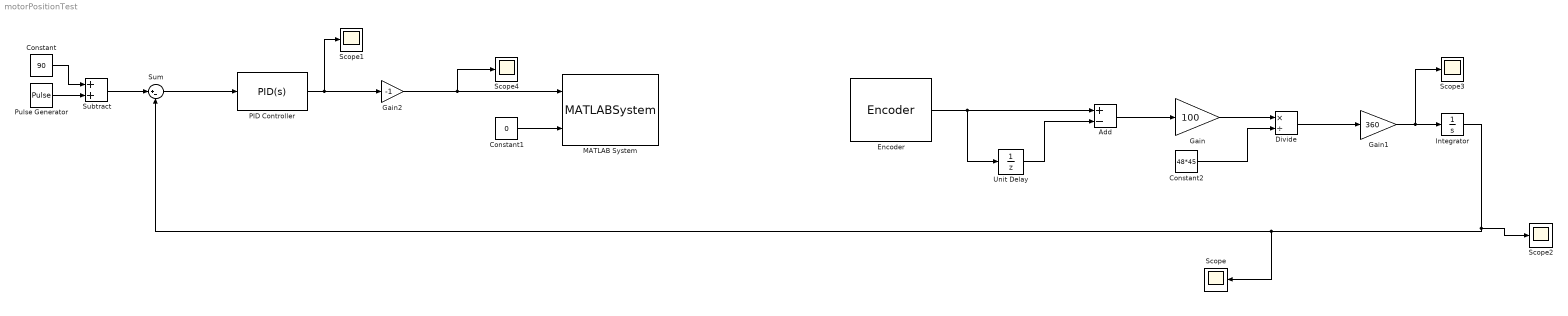
/*
 * Academic License - for use in teaching, academic research, and meeting
 * course requirements at degree granting institutions only.  Not for
 * government, commercial, or other organizational use.
 *
 * File: motorPositionTest.c
 *
 * Code generated for Simulink model 'motorPositionTest'.
 *
 * Model version                  : 1.4
 * Simulink Coder version         : 24.2 (R2024b) 21-Jun-2024
 * C/C++ source code generated on : Fri Dec 20 19:25:08 2024
 *
 * Target selection: ert.tlc
 * Embedded hardware selection: Atmel->AVR
 * Code generation objectives: Unspecified
 * Validation result: Not run
 */

#include "motorPositionTest.h"
#include "rtwtypes.h"
#include "multiword_types.h"
#include "motorPositionTest_private.h"

/* Block signals (default storage) */
B_motorPositionTest_T motorPositionTest_B;

/* Continuous states */
X_motorPositionTest_T motorPositionTest_X;

/* Disabled State Vector */
XDis_motorPositionTest_T motorPositionTest_XDis;

/* Block states (default storage) */
DW_motorPositionTest_T motorPositionTest_DW;

/* Real-time model */
static RT_MODEL_motorPositionTest_T motorPositionTest_M_;
RT_MODEL_motorPositionTest_T *const motorPositionTest_M = &motorPositionTest_M_;
static void rate_monotonic_scheduler(void);
real_T sMultiWord2Double(const uint32_T u1[], int16_T n1, int16_T e1)
{
  real_T y;
  uint32_T cb;
  uint32_T u1i;
  int16_T exp_0;
  int16_T i;
  y = 0.0;
  exp_0 = e1;
  if ((u1[n1 - 1] & 2147483648UL) != 0UL) {
    cb = 1UL;
    for (i = 0; i < n1; i++) {
      u1i = ~u1[i];
      cb += u1i;
      y -= ldexp(cb, exp_0);
      cb = (uint32_T)(cb < u1i);
      exp_0 += 32;
    }
  } else {
    for (i = 0; i < n1; i++) {
      y += ldexp(u1[i], exp_0);
      exp_0 += 32;
    }
  }

  return y;
}

void sMultiWordMul(const uint32_T u1[], int16_T n1, const uint32_T u2[], int16_T
                   n2, uint32_T y[], int16_T n)
{
  uint32_T a0;
  uint32_T a1;
  uint32_T b1;
  uint32_T cb;
  uint32_T cb1;
  uint32_T cb2;
  uint32_T u1i;
  uint32_T w01;
  uint32_T w10;
  uint32_T yk;
  int16_T i;
  int16_T j;
  int16_T k;
  int16_T ni;
  boolean_T isNegative1;
  boolean_T isNegative2;
  isNegative1 = ((u1[n1 - 1] & 2147483648UL) != 0UL);
  isNegative2 = ((u2[n2 - 1] & 2147483648UL) != 0UL);
  cb1 = 1UL;

  /* Initialize output to zero */
  for (k = 0; k < n; k++) {
    y[k] = 0UL;
  }

  for (i = 0; i < n1; i++) {
    cb = 0UL;
    u1i = u1[i];
    if (isNegative1) {
      u1i = ~u1i + cb1;
      cb1 = (uint32_T)(u1i < cb1);
    }

    a1 = u1i >> 16U;
    a0 = u1i & 65535UL;
    cb2 = 1UL;
    ni = n - i;
    ni = n2 <= ni ? n2 : ni;
    k = i;
    for (j = 0; j < ni; j++) {
      u1i = u2[j];
      if (isNegative2) {
        u1i = ~u1i + cb2;
        cb2 = (uint32_T)(u1i < cb2);
      }

      b1 = u1i >> 16U;
      u1i &= 65535UL;
      w10 = a1 * u1i;
      w01 = a0 * b1;
      yk = y[k] + cb;
      cb = (uint32_T)(yk < cb);
      u1i *= a0;
      yk += u1i;
      cb += (uint32_T)(yk < u1i);
      u1i = w10 << 16U;
      yk += u1i;
      cb += (uint32_T)(yk < u1i);
      u1i = w01 << 16U;
      yk += u1i;
      cb += (uint32_T)(yk < u1i);
      y[k] = yk;
      cb += w10 >> 16U;
      cb += w01 >> 16U;
      cb += a1 * b1;
      k++;
    }

    if (k < n) {
      y[k] = cb;
    }
  }

  /* Apply sign */
  if (isNegative1 != isNegative2) {
    cb = 1UL;
    for (k = 0; k < n; k++) {
      yk = ~y[k] + cb;
      y[k] = yk;
      cb = (uint32_T)(yk < cb);
    }
  }
}

/*
 * Set which subrates need to run this base step (base rate always runs).
 * This function must be called prior to calling the model step function
 * in order to remember which rates need to run this base step.  The
 * buffering of events allows for overlapping preemption.
 */
void motorPositionTest_SetEventsForThisBaseStep(boolean_T *eventFlags)
{
  /* Task runs when its counter is zero, computed via rtmStepTask macro */
  eventFlags[2] = ((boolean_T)rtmStepTask(motorPositionTest_M, 2));
}

/*
 *         This function updates active task flag for each subrate
 *         and rate transition flags for tasks that exchange data.
 *         The function assumes rate-monotonic multitasking scheduler.
 *         The function must be called at model base rate so that
 *         the generated code self-manages all its subrates and rate
 *         transition flags.
 */
static void rate_monotonic_scheduler(void)
{
  /* To ensure a deterministic data transfer between two rates,
   * data is transferred at the priority of a fast task and the frequency
   * of the slow task.  The following flags indicate when the data transfer
   * happens.  That is, a rate interaction flag is set true when both rates
   * will run, and false otherwise.
   */

  /* tid 1 shares data with slower tid rate: 2 */
  if (motorPositionTest_M->Timing.TaskCounters.TID[1] == 0) {
    motorPositionTest_M->Timing.RateInteraction.TID1_2 =
      (motorPositionTest_M->Timing.TaskCounters.TID[2] == 0);
  }

  /* Compute which subrates run during the next base time step.  Subrates
   * are an integer multiple of the base rate counter.  Therefore, the subtask
   * counter is reset when it reaches its limit (zero means run).
   */
  (motorPositionTest_M->Timing.TaskCounters.TID[2])++;
  if ((motorPositionTest_M->Timing.TaskCounters.TID[2]) > 499) {/* Sample time: [5.0s, 0.0s] */
    motorPositionTest_M->Timing.TaskCounters.TID[2] = 0;
  }
}

/*
 * This function updates continuous states using the ODE3 fixed-step
 * solver algorithm
 */
static void rt_ertODEUpdateContinuousStates(RTWSolverInfo *si )
{
  /* Solver Matrices */
  static const real_T rt_ODE3_A[3] = {
    1.0/2.0, 3.0/4.0, 1.0
  };

  static const real_T rt_ODE3_B[3][3] = {
    { 1.0/2.0, 0.0, 0.0 },

    { 0.0, 3.0/4.0, 0.0 },

    { 2.0/9.0, 1.0/3.0, 4.0/9.0 }
  };

  time_T t = rtsiGetT(si);
  time_T tnew = rtsiGetSolverStopTime(si);
  time_T h = rtsiGetStepSize(si);
  real_T *x = rtsiGetContStates(si);
  ODE3_IntgData *id = (ODE3_IntgData *)rtsiGetSolverData(si);
  real_T *y = id->y;
  real_T *f0 = id->f[0];
  real_T *f1 = id->f[1];
  real_T *f2 = id->f[2];
  real_T hB[3];
  int_T i;
  int_T nXc = 3;
  rtsiSetSimTimeStep(si,MINOR_TIME_STEP);

  /* Save the state values at time t in y, we'll use x as ynew. */
  (void) memcpy(y, x,
                (uint_T)nXc*sizeof(real_T));

  /* Assumes that rtsiSetT and ModelOutputs are up-to-date */
  /* f0 = f(t,y) */
  rtsiSetdX(si, f0);
  motorPositionTest_derivatives();

  /* f(:,2) = feval(odefile, t + hA(1), y + f*hB(:,1), args(:)(*)); */
  hB[0] = h * rt_ODE3_B[0][0];
  for (i = 0; i < nXc; i++) {
    x[i] = y[i] + (f0[i]*hB[0]);
  }

  rtsiSetT(si, t + h*rt_ODE3_A[0]);
  rtsiSetdX(si, f1);
  motorPositionTest_step0();
  motorPositionTest_derivatives();

  /* f(:,3) = feval(odefile, t + hA(2), y + f*hB(:,2), args(:)(*)); */
  for (i = 0; i <= 1; i++) {
    hB[i] = h * rt_ODE3_B[1][i];
  }

  for (i = 0; i < nXc; i++) {
    x[i] = y[i] + (f0[i]*hB[0] + f1[i]*hB[1]);
  }

  rtsiSetT(si, t + h*rt_ODE3_A[1]);
  rtsiSetdX(si, f2);
  motorPositionTest_step0();
  motorPositionTest_derivatives();

  /* tnew = t + hA(3);
     ynew = y + f*hB(:,3); */
  for (i = 0; i <= 2; i++) {
    hB[i] = h * rt_ODE3_B[2][i];
  }

  for (i = 0; i < nXc; i++) {
    x[i] = y[i] + (f0[i]*hB[0] + f1[i]*hB[1] + f2[i]*hB[2]);
  }

  rtsiSetT(si, tnew);
  rtsiSetSimTimeStep(si,MAJOR_TIME_STEP);
}

/* Model step function for TID0 */
void motorPositionTest_step0(void)     /* Sample time: [0.0s, 0.0s] */
{
  int64m_T tmp_0;
  real_T rtb_Sum;
  uint32_T tmp_1;
  uint32_T tmp_2;
  boolean_T tmp;
  if (rtmIsMajorTimeStep(motorPositionTest_M)) {
    /* set solver stop time */
    rtsiSetSolverStopTime(&motorPositionTest_M->solverInfo,
                          ((motorPositionTest_M->Timing.clockTick0+1)*
      motorPositionTest_M->Timing.stepSize0));

    {                                  /* Sample time: [0.0s, 0.0s] */
      rate_monotonic_scheduler();
    }
  }                                    /* end MajorTimeStep */

  /* Update absolute time of base rate at minor time step */
  if (rtmIsMinorTimeStep(motorPositionTest_M)) {
    motorPositionTest_M->Timing.t[0] = rtsiGetT(&motorPositionTest_M->solverInfo);
  }

  /* Integrator: '<Root>/Integrator' */
  motorPositionTest_B.Integrator = motorPositionTest_X.Integrator_CSTATE;
  tmp = rtmIsMajorTimeStep(motorPositionTest_M);
  if (tmp) {
    /* RateTransition generated from: '<Root>/Sum' */
    if (motorPositionTest_M->Timing.RateInteraction.TID1_2) {
      /* RateTransition generated from: '<Root>/Sum' */
      motorPositionTest_B.TmpRTBAtSumInport1 =
        motorPositionTest_DW.TmpRTBAtSumInport1_Buffer0;
    }

    /* End of RateTransition generated from: '<Root>/Sum' */
  }

  /* Sum: '<Root>/Sum' */
  rtb_Sum = motorPositionTest_B.TmpRTBAtSumInport1 -
    motorPositionTest_B.Integrator;

  /* Gain: '<S39>/Filter Coefficient' incorporates:
   *  Gain: '<S29>/Derivative Gain'
   *  Integrator: '<S31>/Filter'
   *  Sum: '<S31>/SumD'
   */
  motorPositionTest_B.FilterCoefficient = (motorPositionTest_P.PIDController_D *
    rtb_Sum - motorPositionTest_X.Filter_CSTATE) *
    motorPositionTest_P.PIDController_N;

  /* Sum: '<S45>/Sum' incorporates:
   *  Gain: '<S41>/Proportional Gain'
   *  Integrator: '<S36>/Integrator'
   */
  motorPositionTest_B.Sum = (motorPositionTest_P.PIDController_P * rtb_Sum +
    motorPositionTest_X.Integrator_CSTATE_e) +
    motorPositionTest_B.FilterCoefficient;
  if (tmp) {
  }

  /* Gain: '<Root>/Gain2' */
  motorPositionTest_B.Gain2 = motorPositionTest_P.Gain2_Gain *
    motorPositionTest_B.Sum;

  /* MATLABSystem: '<Root>/MATLAB System' incorporates:
   *  Constant: '<Root>/Constant1'
   */
  /*         %% Define input properties */
  /*  Call C-function implementing device output */
  ShieldWrapper_Step(motorPositionTest_B.Gain2,
                     motorPositionTest_P.Constant1_Value);
  if (tmp) {
  }

  /* Gain: '<S33>/Integral Gain' */
  motorPositionTest_B.IntegralGain = motorPositionTest_P.PIDController_I *
    rtb_Sum;
  if (tmp) {
    /* MATLABSystem: '<Root>/Encoder' */
    if (motorPositionTest_DW.obj.TunablePropsChanged) {
      motorPositionTest_DW.obj.TunablePropsChanged = false;
    }

    /* MATLABSystem: '<Root>/Encoder' */
    MW_EncoderRead(motorPositionTest_DW.obj.Index, &motorPositionTest_B.Encoder);

    /* Gain: '<Root>/Gain' incorporates:
     *  Sum: '<Root>/Add'
     *  UnitDelay: '<Root>/Unit Delay'
     */
    tmp_1 = (uint32_T)motorPositionTest_P.Gain_Gain;
    tmp_2 = (uint32_T)(motorPositionTest_B.Encoder -
                       motorPositionTest_DW.UnitDelay_DSTATE);
    sMultiWordMul(&tmp_1, 1, &tmp_2, 1, &tmp_0.chunks[0U], 2);

    /* Gain: '<Root>/Gain1' incorporates:
     *  Constant: '<Root>/Constant2'
     *  Product: '<Root>/Divide'
     */
    motorPositionTest_B.Gain1 = sMultiWord2Double(&tmp_0.chunks[0U], 2, 0) *
      5.9604644775390625E-8 / motorPositionTest_P.Constant2_Value *
      motorPositionTest_P.Gain1_Gain;
  }

  if (rtmIsMajorTimeStep(motorPositionTest_M)) {
    if (rtmIsMajorTimeStep(motorPositionTest_M)) {
      /* Update for UnitDelay: '<Root>/Unit Delay' */
      motorPositionTest_DW.UnitDelay_DSTATE = motorPositionTest_B.Encoder;
    }

    {
      extmodeErrorCode_T returnCode = EXTMODE_SUCCESS;
      extmodeSimulationTime_T extmodeTime = (extmodeSimulationTime_T)
        ((motorPositionTest_M->Timing.clockTick1 * 1) + 0);

      /* Trigger External Mode event */
      returnCode = extmodeEvent(1, extmodeTime);
      if (returnCode != EXTMODE_SUCCESS) {
        /* Code to handle External Mode event errors
           may be added here */
      }
    }
  }                                    /* end MajorTimeStep */

  if (rtmIsMajorTimeStep(motorPositionTest_M)) {
    rt_ertODEUpdateContinuousStates(&motorPositionTest_M->solverInfo);

    /* Update absolute time */
    /* The "clockTick0" counts the number of times the code of this task has
     * been executed. The absolute time is the multiplication of "clockTick0"
     * and "Timing.stepSize0". Size of "clockTick0" ensures timer will not
     * overflow during the application lifespan selected.
     */
    ++motorPositionTest_M->Timing.clockTick0;
    motorPositionTest_M->Timing.t[0] = rtsiGetSolverStopTime
      (&motorPositionTest_M->solverInfo);

    /* Update absolute time */
    /* The "clockTick1" counts the number of times the code of this task has
     * been executed. The resolution of this integer timer is 0.01, which is the step size
     * of the task. Size of "clockTick1" ensures timer will not overflow during the
     * application lifespan selected.
     */
    motorPositionTest_M->Timing.clockTick1++;
  }                                    /* end MajorTimeStep */
}

/* Derivatives for root system: '<Root>' */
void motorPositionTest_derivatives(void)
{
  XDot_motorPositionTest_T *_rtXdot;
  _rtXdot = ((XDot_motorPositionTest_T *) motorPositionTest_M->derivs);

  /* Derivatives for Integrator: '<Root>/Integrator' */
  _rtXdot->Integrator_CSTATE = motorPositionTest_B.Gain1;

  /* Derivatives for Integrator: '<S36>/Integrator' */
  _rtXdot->Integrator_CSTATE_e = motorPositionTest_B.IntegralGain;

  /* Derivatives for Integrator: '<S31>/Filter' */
  _rtXdot->Filter_CSTATE = motorPositionTest_B.FilterCoefficient;
}

/* Model step function for TID2 */
void motorPositionTest_step2(void)     /* Sample time: [5.0s, 0.0s] */
{
  real_T rtb_PulseGenerator;

  /* DiscretePulseGenerator: '<Root>/Pulse Generator' */
  rtb_PulseGenerator = (motorPositionTest_DW.clockTickCounter <
                        motorPositionTest_P.PulseGenerator_Duty) &&
    (motorPositionTest_DW.clockTickCounter >= 0L) ?
    motorPositionTest_P.PulseGenerator_Amp : 0.0;
  if (motorPositionTest_DW.clockTickCounter >=
      motorPositionTest_P.PulseGenerator_Period - 1.0) {
    motorPositionTest_DW.clockTickCounter = 0L;
  } else {
    motorPositionTest_DW.clockTickCounter++;
  }

  /* End of DiscretePulseGenerator: '<Root>/Pulse Generator' */

  /* RateTransition generated from: '<Root>/Sum' incorporates:
   *  Constant: '<Root>/Constant'
   *  Sum: '<Root>/Subtract'
   */
  motorPositionTest_DW.TmpRTBAtSumInport1_Buffer0 =
    motorPositionTest_P.Constant_Value + rtb_PulseGenerator;

  /* Update absolute time */
  /* The "clockTick2" counts the number of times the code of this task has
   * been executed. The resolution of this integer timer is 5.0, which is the step size
   * of the task. Size of "clockTick2" ensures timer will not overflow during the
   * application lifespan selected.
   */
  motorPositionTest_M->Timing.clockTick2++;
}
